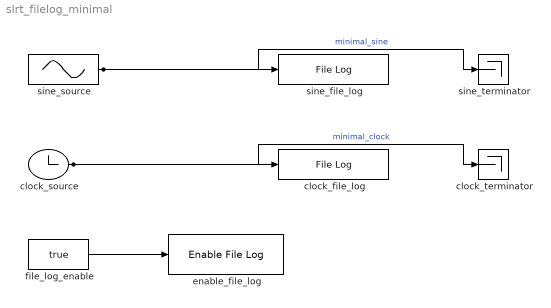
/*
 * slrt_filelog_minimal.cpp
 *
 * Academic License - for use in teaching, academic research, and meeting
 * course requirements at degree granting institutions only.  Not for
 * government, commercial, or other organizational use.
 *
 * Code generation for model "slrt_filelog_minimal".
 *
 * Model version              : 1.1
 * Simulink Coder version : 23.2 (R2023b) 01-Aug-2023
 * C++ source code generated on : Mon Jun 29 22:50:01 2026
 *
 * Target selection: slrealtime.tlc
 * Note: GRT includes extra infrastructure and instrumentation for prototyping
 * Embedded hardware selection: Intel->x86-64 (Linux 64)
 * Code generation objectives: Unspecified
 * Validation result: Not run
 */

#include "slrt_filelog_minimal.h"
#include "slrt_filelog_minimal_cal.h"
#include <cmath>
#include "rtwtypes.h"
#include "slrt_filelog_minimal_private.h"
#include <cstring>

extern "C"
{

#include "rt_nonfinite.h"

}

/* Block signals (default storage) */
B_slrt_filelog_minimal_T slrt_filelog_minimal_B;

/* Block states (default storage) */
DW_slrt_filelog_minimal_T slrt_filelog_minimal_DW;

/* Real-time model */
RT_MODEL_slrt_filelog_minimal_T slrt_filelog_minimal_M_ =
  RT_MODEL_slrt_filelog_minimal_T();
RT_MODEL_slrt_filelog_minimal_T *const slrt_filelog_minimal_M =
  &slrt_filelog_minimal_M_;

/* Model step function */
void slrt_filelog_minimal_step(void)
{
  {
    real_T lastSin_tmp;

    /* Clock: '<Root>/clock_source' */
    slrt_filelog_minimal_B.minimal_clock = slrt_filelog_minimal_M->Timing.t[0];

    /* ToAsyncQueueBlock generated from: '<S1>/clock_source' */
    slrtLogSignal
      (slrt_filelog_minimal_DW.TAQSigLogging_InsertedFor_clock.SLRTSigHandles,
       (((slrt_filelog_minimal_M->Timing.clockTick1+
          slrt_filelog_minimal_M->Timing.clockTickH1* 4294967296.0)) * 0.001));

    /* Constant: '<Root>/file_log_enable' */
    slrt_filelog_minimal_B.file_log_enable =
      slrt_filelog_minimal_cal->file_log_enable_Value;

    /* S-Function (slrealtimeenablelogging): '<Root>/enable_file_log' */

    /* Level2 S-Function Block: '<Root>/enable_file_log' (slrealtimeenablelogging) */
    {
      SimStruct *rts = slrt_filelog_minimal_M->childSfunctions[0];
      sfcnOutputs(rts,0);
    }

    /* Sin: '<Root>/sine_source' */
    if (slrt_filelog_minimal_DW.systemEnable != 0) {
      lastSin_tmp = slrt_filelog_minimal_cal->sine_source_Freq *
        slrt_filelog_minimal_M->Timing.t[1];
      slrt_filelog_minimal_DW.lastSin = std::sin(lastSin_tmp);
      slrt_filelog_minimal_DW.lastCos = std::cos(lastSin_tmp);
      slrt_filelog_minimal_DW.systemEnable = 0;
    }

    /* Sin: '<Root>/sine_source' */
    slrt_filelog_minimal_B.minimal_sine = ((slrt_filelog_minimal_DW.lastSin *
      slrt_filelog_minimal_cal->sine_source_PCos +
      slrt_filelog_minimal_DW.lastCos *
      slrt_filelog_minimal_cal->sine_source_PSin) *
      slrt_filelog_minimal_cal->sine_source_HCos +
      (slrt_filelog_minimal_DW.lastCos *
       slrt_filelog_minimal_cal->sine_source_PCos -
       slrt_filelog_minimal_DW.lastSin *
       slrt_filelog_minimal_cal->sine_source_PSin) *
      slrt_filelog_minimal_cal->sine_source_Hsin) *
      slrt_filelog_minimal_cal->sine_source_Amp +
      slrt_filelog_minimal_cal->sine_source_Bias;

    /* ToAsyncQueueBlock generated from: '<S2>/sine_source' */
    slrtLogSignal
      (slrt_filelog_minimal_DW.TAQSigLogging_InsertedFor_sine_.SLRTSigHandles,
       slrt_filelog_minimal_M->Timing.t[1]);
  }

  {
    real_T HoldCosine;
    real_T HoldSine;

    /* Update for Sin: '<Root>/sine_source' */
    HoldSine = slrt_filelog_minimal_DW.lastSin;
    HoldCosine = slrt_filelog_minimal_DW.lastCos;
    slrt_filelog_minimal_DW.lastSin = HoldSine *
      slrt_filelog_minimal_cal->sine_source_HCos + HoldCosine *
      slrt_filelog_minimal_cal->sine_source_Hsin;
    slrt_filelog_minimal_DW.lastCos = HoldCosine *
      slrt_filelog_minimal_cal->sine_source_HCos - HoldSine *
      slrt_filelog_minimal_cal->sine_source_Hsin;
  }

  /* Update absolute time for base rate */
  /* The "clockTick0" counts the number of times the code of this task has
   * been executed. The absolute time is the multiplication of "clockTick0"
   * and "Timing.stepSize0". Size of "clockTick0" ensures timer will not
   * overflow during the application lifespan selected.
   * Timer of this task consists of two 32 bit unsigned integers.
   * The two integers represent the low bits Timing.clockTick0 and the high bits
   * Timing.clockTickH0. When the low bit overflows to 0, the high bits increment.
   */
  if (!(++slrt_filelog_minimal_M->Timing.clockTick0)) {
    ++slrt_filelog_minimal_M->Timing.clockTickH0;
  }

  slrt_filelog_minimal_M->Timing.t[0] =
    slrt_filelog_minimal_M->Timing.clockTick0 *
    slrt_filelog_minimal_M->Timing.stepSize0 +
    slrt_filelog_minimal_M->Timing.clockTickH0 *
    slrt_filelog_minimal_M->Timing.stepSize0 * 4294967296.0;

  {
    /* Update absolute timer for sample time: [0.001s, 0.0s] */
    /* The "clockTick1" counts the number of times the code of this task has
     * been executed. The absolute time is the multiplication of "clockTick1"
     * and "Timing.stepSize1". Size of "clockTick1" ensures timer will not
     * overflow during the application lifespan selected.
     * Timer of this task consists of two 32 bit unsigned integers.
     * The two integers represent the low bits Timing.clockTick1 and the high bits
     * Timing.clockTickH1. When the low bit overflows to 0, the high bits increment.
     */
    if (!(++slrt_filelog_minimal_M->Timing.clockTick1)) {
      ++slrt_filelog_minimal_M->Timing.clockTickH1;
    }

    slrt_filelog_minimal_M->Timing.t[1] =
      slrt_filelog_minimal_M->Timing.clockTick1 *
      slrt_filelog_minimal_M->Timing.stepSize1 +
      slrt_filelog_minimal_M->Timing.clockTickH1 *
      slrt_filelog_minimal_M->Timing.stepSize1 * 4294967296.0;
  }
}
